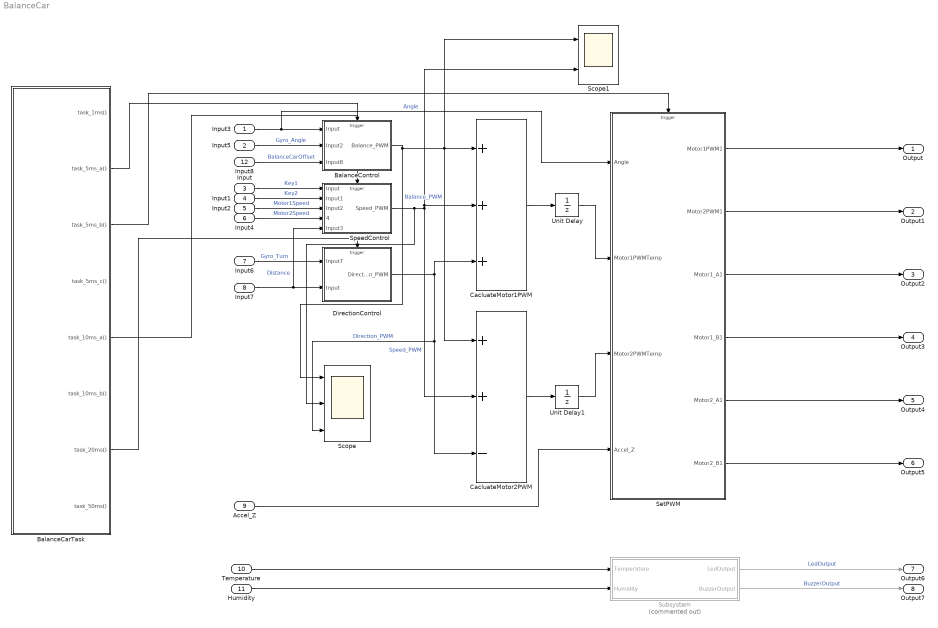
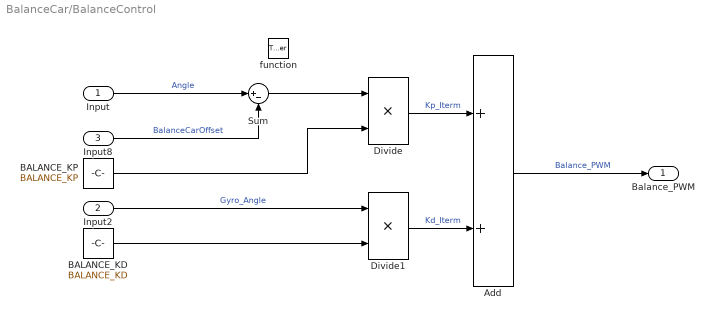
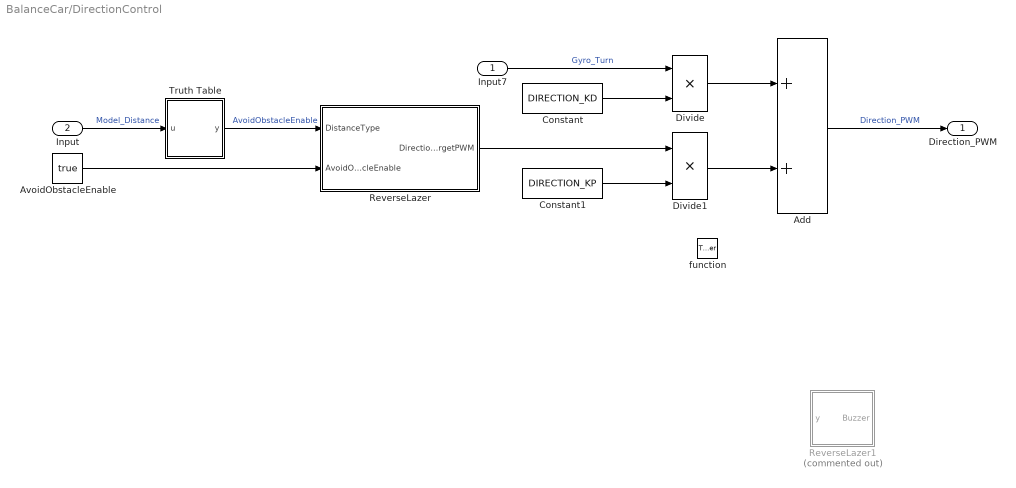
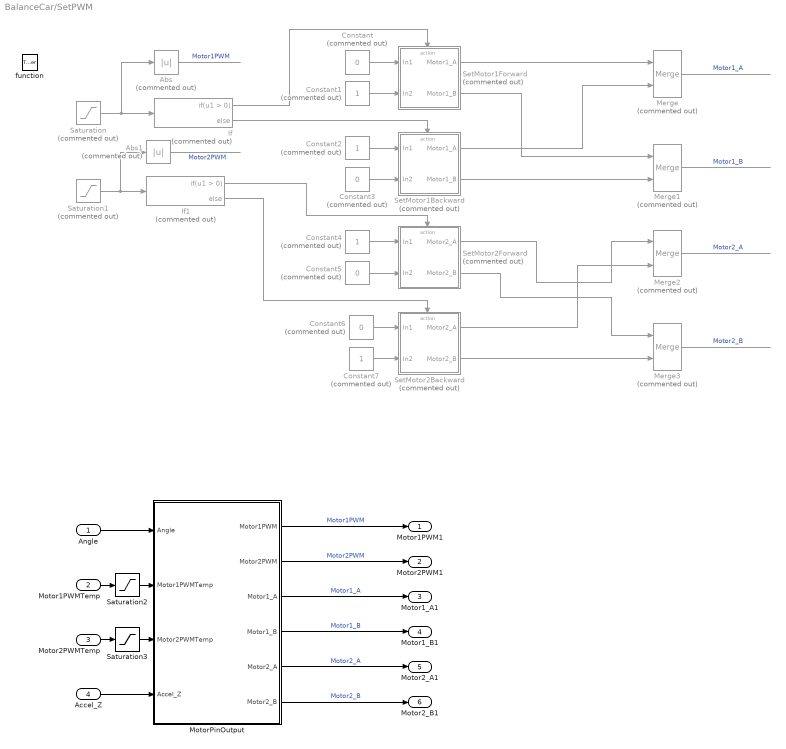
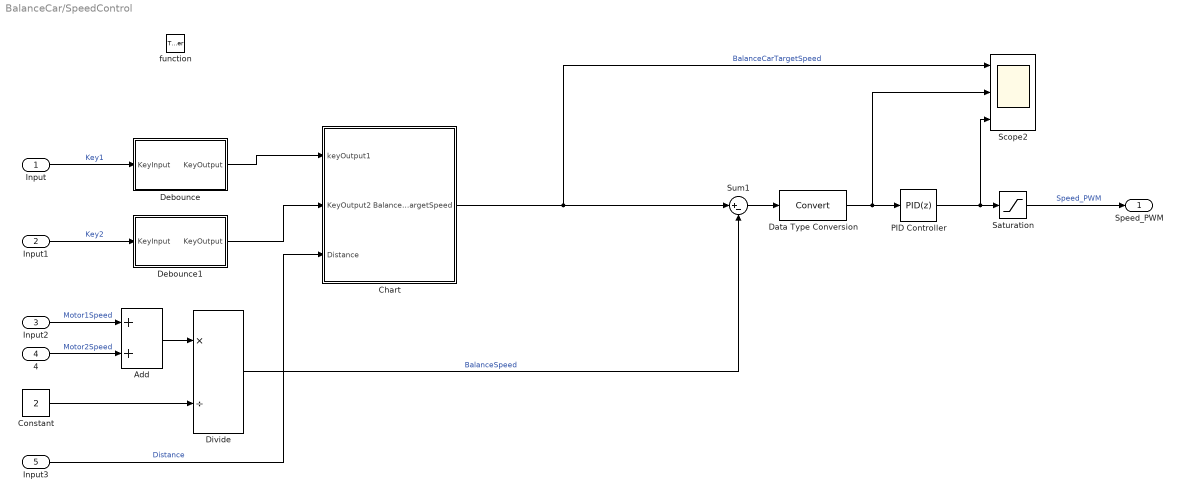
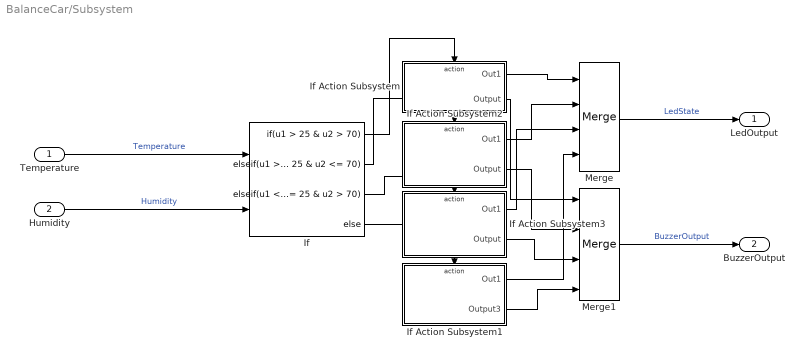
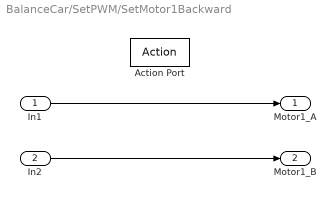
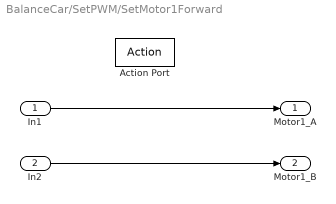
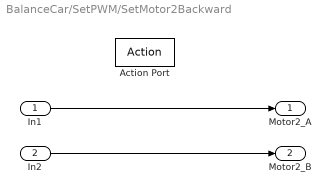
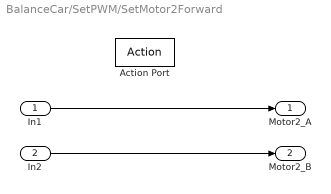
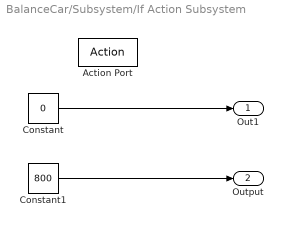
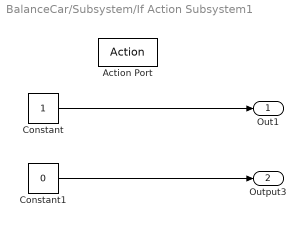
== system BalanceCar/SetPWM/MotorPinOutput/abs ==
  x : Inport  OutDataTypeStr=int16  PortDimensions=1
  f : TriggerPort  TriggerType=function-call  VariantControl=(inherit)
  Abs : Abs  OutDataTypeStr=uint16  SaturateOnIntegerOverflow=off
  y : Outport  OutDataTypeStr=uint16
  wires:
  x/1 -> Abs/1
  Abs/1 -> y/1

== system BalanceCar/Subsystem/If Action Subsystem2 ==
  Action Port : ActionPort  ActionPortLabel=elseif(u1 > 25 & u2 <= 70)
  Constant : Constant  Value=0  OutDataTypeStr=uint8
  Constant1 : Constant  Value=0  OutDataTypeStr=uint16
  Out1 : Outport
  Output : Outport  Port=2
  wires:
  Constant1/1 -> Output/1
  Constant/1 -> Out1/1

== system BalanceCar/Subsystem/If Action Subsystem3 ==
  Action Port : ActionPort  ActionPortLabel=elseif(u1 <= 25 & u2 > 70)
  Constant : Constant  OutDataTypeStr=uint8
  Constant1 : Constant  Value=800  OutDataTypeStr=uint16
  Out1 : Outport
  Output : Outport  Port=2
  wires:
  Constant/1 -> Out1/1
  Constant1/1 -> Output/1

== stateflow chart BalanceCar/DirectionControl/ReverseLazer ==
  state Default [commented out]
    en:
    DirectionTargetPWM = 0;
    du:
    % disable chaoshengbo
    DiasbleAvoidObstacle = false;
  state TurnDirection [commented out]
    en:
    DirectionTargetPWM = 20;
    du:
    DirectionTargetPWM = DirectionTargetPWM - 1;
  state Back [commented out]
    en:
    DirectionTargetPWM = -20;
    du:
    DirectionTargetPWM = DirectionTargetPWM + 1;
  state Default1
    en:
    DirectionTargetPWM = 0;
  state TurnDirection1
    en:
    DirectionTargetPWM = 0;
    state Enter1
      du:
      DirectionTargetPWM = DirectionTargetPWM + 5;
    state End1
    (default) -> TurnDirection1.Enter1
    TurnDirection1.Enter1 -> TurnDirection1.End1 : [ DistanceType == 0 || DirectionTargetPWM > 100]
  state StopTurn
    en:
    state Enter1
      du:
      DirectionTargetPWM = DirectionTargetPWM - 10;
    state End1
    (default) -> StopTurn.Enter1
    StopTurn.Enter1 -> StopTurn.End1 : [DirectionTargetPWM == 0]
  state Back2 [commented out]
    en:
    DirectionTargetPWM = 40;
    state Enter1 [commented out]
      du:
      DirectionTargetPWM = DirectionTargetPWM - 4;
    state End1 [commented out]
    (default) -> Back2.Enter1 [commented out]
    Back2.Enter1 -> Back2.End1 [commented out] : [DirectionTargetPWM == 0]
  state Back1 [commented out]
    en:
    DirectionTargetPWM = 40;
    state Enter1 [commented out]
      du:
      DirectionTargetPWM = DirectionTargetPWM - 4;
    state End1 [commented out]
    (default) -> Back1.Enter1 [commented out]
    Back1.Enter1 -> Back1.End1 [commented out] : [DirectionTargetPWM == 0]
  (default) -> Default [commented out]
  Default -> TurnDirection [commented out] : [DiasbleAvoidObstacle...  &&(DistanceType == 1 || DistanceType == 2 || DistanceType == 3)]
  TurnDirection -> Back [commented out] : [(DirectionTargetPWM == 0)&&after(1000,msec)]
  Back -> Default [commented out] : [(DirectionTargetPWM == 0)&&after(1000,msec)]
  (default) -> Default1
  Default1 -> TurnDirection1 : [AvoidObstacleEnable...  &&(DistanceType == 1)...  &&(DistanceType == 2)...  &&(DistanceType == 3)]
  TurnDirection1.End1 -> StopTurn : [after(10,msec)]
  StopTurn -> Default1 : [DirectionTargetPWM == 0 || DistanceType == 0]
  StopTurn.End1 -> Back2 [commented out] : [after(20,msec)]
  Back2.End1 -> Back1 [commented out] : [after(20,msec)]
  data: DirectionTargetPWM output; DistanceType input; AvoidObstacleEnable input

== matlab function BalanceCar/DirectionControl/Truth Table ==
function y = fcn(u)

aVarTruthTableCondition_1 = false;
aVarTruthTableCondition_2 = false;
aVarTruthTableCondition_3 = false;


% Example condition 1

aVarTruthTableCondition_1 = logical((u  <= 10) &&(u  >=0));

% Example condition 2

aVarTruthTableCondition_2 = logical((u  <= 30) &&(u  > 10));

% Example condition 3

aVarTruthTableCondition_3 = logical((u  >30) &&(u  < 50));

if (aVarTruthTableCondition_1)
    aFcnTruthTableAction_1();
elseif (~aVarTruthTableCondition_1 && aVarTruthTableCondition_2)
    aFcnTruthTableAction_2();
elseif (~aVarTruthTableCondition_1 && ~aVarTruthTableCondition_2 && aVarTruthTableCondition_3)
    aFcnTruthTableAction_3();
else % Default
    aFcnTruthTableAction_4();
end

function aFcnTruthTableAction_1()

% Action 1:Dangerous

y = 1;

function aFcnTruthTableAction_2()

% Action 2: Carefull

y = 2;

function aFcnTruthTableAction_3()

% Action 3:Warning

y = 3;

function aFcnTruthTableAction_4()

% Action 4:Noramal

y = 0;

== stateflow chart BalanceCar/BalanceCarTask ==
  state Task_5ms [function]
    (default) -> (junction 132)
    (junction 132) -> (junction 140) [order 1] : [task_5ms_count == 1]
    (junction 132) -> (junction 144) [order 2]
    (junction 140) -> (junction 142) : {task_5ms_a}
    (junction 142) -> (junction 144)
    (junction 144) -> (junction 148)
    (junction 148) -> (junction 155) [order 1] : [task_5ms_count == 2]
    (junction 148) -> (junction 151) [order 2]
    (junction 155) -> (junction 152) : {task_5ms_b}
    (junction 152) -> (junction 151)
    (junction 151) -> (junction 162)
    (junction 162) -> (junction 166) [order 1] : [task_5ms_count == 3]
    (junction 162) -> (junction 160) [order 2]
    (junction 166) -> (junction 161) : {task_5ms_c}
    (junction 161) -> (junction 160)
  state Task_10ms [function]
    (default) -> (junction 169)
    (junction 169) -> (junction 193) [order 1] : [task_10ms_count == 2]
    (junction 169) -> (junction 181) [order 2]
    (junction 193) -> (junction 190) : {task_10ms_a}
    (junction 190) -> (junction 181)
    (junction 181) -> (junction 185)
    (junction 185) -> (junction 189) [order 1] : [task_10ms_count == 3]
    (junction 185) -> (junction 183) [order 2]
    (junction 189) -> (junction 184) : {task_10ms_b}
    (junction 184) -> (junction 183)
  state Task_20ms [function]
    (default) -> (junction 196)
    (junction 196) -> (junction 204) [order 1] : [task_20ms_count == 3]
    (junction 196) -> (junction 201) [order 2]
    (junction 204) -> (junction 202) : {task_20ms}
    (junction 202) -> (junction 201)
  state Task_50ms [function]
    (default) -> (junction 206)
    (junction 206) -> (junction 214) [order 1] : [task_50ms_count == 4]
    (junction 206) -> (junction 211) [order 2]
    (junction 214) -> (junction 212) : {task_50ms}
    (junction 212) -> (junction 211)
  (default) -> (junction 87) : {task_5ms_count = task_5ms_count + 1;}
  (junction 87) -> (junction 69) : {task_1ms;}
  (junction 69) -> (junction 77) [order 1] : [mod(task_5ms_count,5)==0]
  (junction 69) -> (junction 71) [order 2]
  (junction 77) -> (junction 79) : {task_5ms_count = 0;}
  (junction 79) -> (junction 71)
  (junction 71) -> (junction 93) : {task_10ms_count = task_10ms_count + 1;}
  (junction 93) -> (junction 95) [order 1] : [mod(task_10ms_count,10)==0]
  (junction 93) -> (junction 97) [order 2]
  (junction 95) -> (junction 99) : {task_10ms_count = 0;}
  (junction 99) -> (junction 97)
  (junction 97) -> (junction 106) : {task_20ms_count = task_20ms_count + 1;}
  (junction 106) -> (junction 108) [order 1] : [mod(task_20ms_count,20)==0]
  (junction 106) -> (junction 103) [order 2]
  (junction 108) -> (junction 109) : {task_20ms_count = 1;}
  (junction 109) -> (junction 103)
  (junction 103) -> (junction 114) : {task_50ms_count = task_50ms_count + 1;}
  (junction 114) -> (junction 117) [order 1] : [mod(task_50ms_count,50)==0]
  (junction 114) -> (junction 115) [order 2]
  (junction 117) -> (junction 116) : {task_50ms_count = 0;}
  (junction 116) -> (junction 115)
  (junction 115) -> (junction 138) : {Task_5ms(); Task_10ms(); Task_20ms(); Task_50ms();}
  data: task_5ms_count local uint8 =NUM0; task_10ms_count local uint8 =NUM0; task_20ms_count local uint8 =NUM0; task_50ms_count local uint8 =NUM0
  events: task_10ms_a output FUNCTION_CALL_EVENT; task_1ms output FUNCTION_CALL_EVENT; task_5ms_a output FUNCTION_CALL_EVENT; task_20ms output FUNCTION_CALL_EVENT; task_5ms_b output FUNCTION_CALL_EVENT; task_5ms_c output FUNCTION_CALL_EVENT; task_10ms_b output FUNCTION_CALL_EVENT; task_50ms output FUNCTION_CALL_EVENT

== stateflow chart BalanceCar/SpeedControl/Debounce ==
  state Debounce [parallel]
    state Key1Off
      du:
      KeyState = OFF;
    state KeyOn
      du:
      KeyState = ON;
      KeyOnFlag = true;
    (default) -> Key1Off
    Key1Off -> KeyOn : [duration(KeyInput <= NUM0)>=0.01]
    KeyOn -> Key1Off : [duration(KeyInput > NUM0)>=0.01]
  state KeyCounter [function]
    (default) -> (junction 40)
    (junction 40) -> (junction 43) [order 1] : [(KeyOnFlag == true)&&(KeyState == OFF)]
    (junction 40) -> (junction 41) [order 2]
    (junction 43) -> (junction 37) : {KeyOnFlag = false; KeyOutput =  ON;}
    (junction 41) -> (junction 37) : {KeyOutput =  OFF;}
  state KeyTimes [parallel]
    du:
    KeyCounter();
  data: KeyInput input uint8; OFF parameter; ON parameter; NUM0 parameter; KeyOutput output uint8; KeyOnFlag local boolean =false; KeyState local uint8 =OFF

== stateflow chart BalanceCar/SpeedControl/Debounce1 ==
  state Debounce [parallel]
    state Key1Off
      du:
      KeyState = OFF;
    state KeyOn
      du:
      KeyState = ON;
      KeyOnFlag = true;
    (default) -> Key1Off
    Key1Off -> KeyOn : [duration(KeyInput <= NUM0)>=0.01]
    KeyOn -> Key1Off : [duration(KeyInput > NUM0)>=0.01]
  state KeyCounter [function]
    (default) -> (junction 40)
    (junction 40) -> (junction 43) [order 1] : [(KeyOnFlag == true)&&(KeyState == OFF)]
    (junction 40) -> (junction 41) [order 2]
    (junction 43) -> (junction 37) : {KeyOnFlag = false; KeyOutput =  ON;}
    (junction 41) -> (junction 37) : {KeyOutput =  OFF;}
  state KeyTimes [parallel]
    du:
    KeyCounter();
  data: KeyInput input uint8; OFF parameter; ON parameter; NUM0 parameter; KeyOutput output uint8; KeyOnFlag local boolean =false; KeyState local uint8 =OFF

== stateflow chart BalanceCar/SpeedControl/Chart ==
  state SpeedDown [function]
    (default) -> (junction 33)
    (junction 33) -> (junction 35) [order 1] : [KeyOutput2 == ON]
    (junction 33) -> (junction 37) [order 2]
    (junction 35) -> (junction 41) : {BalanceCarTargetSpeed=BalanceCarTargetSpeed-20;}
    (junction 37) -> (junction 41)
  state SpeedUp [function]
    (default) -> (junction 26)
    (junction 26) -> (junction 28) [order 1] : [keyOutput1 == ON]
    (junction 26) -> (junction 30) [order 2]
    (junction 28) -> (junction 23) : {BalanceCarTargetSpeed=BalanceCarTargetSpeed+20;}
    (junction 30) -> (junction 23)
  state SpeedUpStatus
    en:
    BalanceCarTargetSpeed = 0;
    du:
    SpeedUp();
    SpeedDown();
    SpeedStop();
  state SpeedStop [function]
    (default) -> (junction 58)
    (junction 58) -> (junction 59) [order 1] : [Distance <= 10]
    (junction 58) -> (junction 60) [order 2]
    (junction 59) -> (junction 61)
    (junction 60) -> (junction 61)
  (default) -> SpeedUpStatus
  data: keyOutput1 input; ON parameter; KeyOutput2 input; BalanceCarTargetSpeed output int16; Distance input

== stateflow chart BalanceCar/DirectionControl/ReverseLazer1 ==
  state Dangours
    en:
    state RuningState
      du:
      Buzzer = 480;
    state StopState
      du:
      Buzzer = 0;
    (default) -> Dangours.RuningState
    Dangours.RuningState -> Dangours.StopState : [after(20,msec)]
    Dangours.StopState -> Dangours.RuningState : [after(10,msec)]
  state Default
    en:
    Buzzer = 0;
  state Warning
    state RuningState
      du:
      Buzzer = 480;
    state StopState
      du:
      Buzzer = 0;
    (default) -> Warning.RuningState
    Warning.RuningState -> Warning.StopState : [after(50,msec)]
    Warning.StopState -> Warning.RuningState : [after(20,msec)]
  state Careful
    state RuningState
      du:
      Buzzer = 480;
    state StopState
      du:
      Buzzer = 0;
    (default) -> Careful.RuningState
    Careful.RuningState -> Careful.StopState : [after(100,msec)]
    Careful.StopState -> Careful.RuningState : [after(50,msec)]
  state Normal
    en:
    Buzzer = 0;
  (default) -> Default
  Default -> Dangours [order 1] : [y == 1]
  Dangours -> Warning [order 1] : [y==2]
  Warning -> Dangours [order 1] : [y==1]
  Dangours -> Careful [order 3] : [y == 3]
  Careful -> Dangours [order 3] : [y==1]
  Normal -> Dangours [order 3] : [y==1]
  Dangours -> Normal [order 2] : [y==4]
  Default -> Warning [order 2] : [y==2]
  Warning -> Careful [order 2] : [y==3]
  Careful -> Warning [order 2] : [y==2]
  Warning -> Normal [order 3] : [y==4]
  Normal -> Warning [order 2] : [y==2]
  Default -> Careful [order 4] : [y == 3]
  Careful -> Normal [order 1] : [y==4]
  Normal -> Careful [order 1] : [y==3]
  Default -> Normal [order 3] : [y==4]
  data: y input; Buzzer output uint16

== stateflow chart BalanceCar/SetPWM/MotorPinOutput ==
  state PeriodFunction
    en:
    Motor1_A = LOW;
    Motor1_B = LOW;
    Motor2_A = LOW;
    Motor2_B = LOW;
    du:
    Motor1PWM = abs(Motor1PWMTemp);
    Motor2PWM = abs(Motor2PWMTemp);
    SetDirection();
    FallDownDetect();
  state FallDownDetect [function]
    (default) -> (junction 68)
    (junction 68) -> (junction 69) [order 1] : [(Angle > 55) || (Angle < -50)]
    (junction 68) -> (junction 74) [order 2]
    (junction 69) -> (junction 65) : {MotorStop}
    (junction 74) -> (junction 65) [order 1] : [Accel_Z > 18000]
    (junction 74) -> (junction 100) [order 2]
    (junction 65) -> (junction 98)
    (junction 100) -> (junction 98)
  state SetDirection [function]
    (default) -> (junction 9)
    (junction 9) -> (junction 11) [order 1] : [Motor1PWMTemp > NUM0]
    (junction 9) -> (junction 13) [order 2] : {Motor1Backward}
    (junction 11) -> (junction 15) : {Motor1Forward}
    (junction 15) -> (junction 13)
    (junction 13) -> (junction 18)
    (junction 18) -> (junction 19) [order 1] : [Motor2PWMTemp > NUM0]
    (junction 18) -> (junction 29) [order 2] : {Motor2Backward}
    (junction 19) -> (junction 31) : {Motor2Forward}
    (junction 29) -> (junction 31)
  state MotorStop [function]
    (default) -> (junction 62) : {Motor1_A = LOW; Motor1_B = LOW; Motor2_A = LOW; Motor2_B = LOW; Motor1PWM = NUM0; Motor2PWM = NUM0}
  state y=abs(x) [function]
  state Motor1Forward [function]
    (default) -> (junction 48) : {Motor1_A = LOW; Motor1_B = HIGH;}
  state Motor1Backward [function]
    (default) -> (junction 55) : {Motor1_A = HIGH; Motor1_B = LOW;}
  state Motor2Forward [function]
    (default) -> (junction 53) : {Motor2_A = LOW; Motor2_B = HIGH;}
  state Motor2Backward [function]
    (default) -> (junction 57) : {Motor2_A = HIGH; Motor2_B = LOW;}
  (default) -> PeriodFunction
  data: x function_input int16; y function_output uint16; Motor1PWM output; Motor2PWM output; LOW parameter; Motor1PWMTemp input; Motor2PWMTemp input; Motor1_A output; HIGH parameter; NUM0 parameter; Angle input; Motor1_B output; Motor2_A output; Motor2_B output; Accel_Z input

/*
 * Academic License - for use in teaching, academic research, and meeting
 * course requirements at degree granting institutions only.  Not for
 * government, commercial, or other organizational use.
 *
 * File: BalanceCar.c
 *
 * Code generated for Simulink model 'BalanceCar'.
 *
 * Model version                  : 1.56
 * Simulink Coder version         : 9.7 (R2022a) 13-Nov-2021
 * C/C++ source code generated on : Mon Jun  2 11:08:17 2025
 *
 * Target selection: ert.tlc
 * Embedded hardware selection: Custom Processor->Custom Processor
 * Code generation objectives: Unspecified
 * Validation result: Not run
 */

#include "BalanceCar.h"
#include "rtwtypes.h"
#include <math.h>

/* Named constants for Chart: '<S5>/Debounce' */
#define BalanceCar_IN_Key1Off          ((uint8_T)1U)
#define BalanceCar_IN_KeyOn            ((uint8_T)2U)

/* Named constants for Chart: '<S3>/ReverseLazer' */
#define BalanceCar_IN_Default1         ((uint8_T)1U)
#define BalanceCar_IN_End1             ((uint8_T)1U)
#define BalanceCar_IN_Enter1           ((uint8_T)2U)
#define BalanceCar_IN_NO_ACTIVE_CHILD  ((uint8_T)0U)
#define BalanceCar_IN_StopTurn         ((uint8_T)2U)
#define BalanceCar_IN_TurnDirection1   ((uint8_T)3U)

/* Exported block signals */
real32_T Angle;                        /* '<Root>/Input3' */
int16_T Gyro_Angle;                    /* '<Root>/Input5' */
uint8_T Key1;                          /* '<Root>/Input' */
uint8_T Key2;                          /* '<Root>/Input1' */
int16_T Motor1Speed;                   /* '<Root>/Input2' */
int16_T Motor2Speed;                   /* '<Root>/Input4' */
int16_T Gyro_Turn;                     /* '<Root>/Input6' */
real32_T Model_Distance;               /* '<Root>/Input7' */
real32_T BalanceCarOffset;             /* '<Root>/Input8' */
uint16_T Motor1PWM;                    /* '<S4>/MotorPinOutput' */
uint16_T Motor2PWM;                    /* '<S4>/MotorPinOutput' */
int16_T Direction_PWM;                 /* '<S3>/Add' */
int16_T Balance_PWM;                   /* '<S2>/Add' */
int16_T Speed_PWM;                     /* '<S5>/Saturation' */
int16_T BalanceCarTargetSpeed;         /* '<S5>/Chart' */
uint8_T Motor1_A;                      /* '<S4>/MotorPinOutput' */
uint8_T Motor1_B;                      /* '<S4>/MotorPinOutput' */
uint8_T Motor2_A;                      /* '<S4>/MotorPinOutput' */
uint8_T Motor2_B;                      /* '<S4>/MotorPinOutput' */

/* Block signals (default storage) */
B_BalanceCar_T BalanceCar_B;

/* Block states (default storage) */
DW_BalanceCar_T BalanceCar_DW;

/* External inputs (root inport signals with default storage) */
ExtU_BalanceCar_T BalanceCar_U;

/* External outputs (root outports fed by signals with default storage) */
ExtY_BalanceCar_T BalanceCar_Y;

/* Real-time model */
static RT_MODEL_BalanceCar_T BalanceCar_M_;
RT_MODEL_BalanceCar_T *const BalanceCar_M = &BalanceCar_M_;
static int32_T div_nde_s32_floor(int32_T numerator, int32_T denominator);
static void BalanceCar_Debounce_Init(uint8_T *rty_KeyOutput,
  DW_Debounce_BalanceCar_T *localDW);
static void BalanceCar_Debounce_Enable(RT_MODEL_BalanceCar_T * const
  BalanceCar_M, DW_Debounce_BalanceCar_T *localDW);
static void BalanceCar_Debounce(RT_MODEL_BalanceCar_T * const BalanceCar_M,
  uint8_T rtu_KeyInput, uint8_T *rty_KeyOutput, DW_Debounce_BalanceCar_T
  *localDW);
static void BalanceCar_BalanceControl_Init(int16_T *rty_Balance_PWM,
  P_BalanceControl_BalanceCar_T *localP);
static void BalanceCar_BalanceControl(real32_T rtu_Input, int16_T rtu_Input2,
  real32_T rtu_Input8, int16_T *rty_Balance_PWM);
static void BalanceCar_abs_Init(uint16_T *rty_y, P_abs_BalanceCar_T *localP);
static void BalanceCar_abs(int16_T rtu_x, uint16_T *rty_y);
static void BalanceCar_SetPWM_Init(uint16_T *rty_Motor1PWM1, uint16_T
  *rty_Motor2PWM1, P_SetPWM_BalanceCar_T *localP);
static void BalanceCar_SetPWM(real32_T rtu_Angle, int16_T rtu_Motor1PWMTemp,
  int16_T rtu_Motor2PWMTemp, uint16_T *rty_Motor1PWM1, uint16_T *rty_Motor2PWM1,
  uint8_T *rty_Motor1_A1, uint8_T *rty_Motor1_B1, uint8_T *rty_Motor2_A1,
  uint8_T *rty_Motor2_B1, DW_SetPWM_BalanceCar_T *localDW, P_SetPWM_BalanceCar_T
  *localP);
static void SpeedControl_Init(void);
static void SpeedControl_Enable(void);
static void SpeedControl(void);
static void BalanceCar_TruthTable(void);
static void DirectionControl_Init(void);
static void DirectionControl_Enable(void);
static void DirectionControl(void);

/* Forward declaration for local functions */
static void BalanceCar_KeyCounter(uint8_T *rty_KeyOutput,
  DW_Debounce_BalanceCar_T *localDW);

/* Forward declaration for local functions */
static void BalanceCar_Motor1Backward(uint8_T *Motor1_A_a, uint8_T *Motor1_B_h);
static void BalanceCar_Motor1Forward(uint8_T *Motor1_A_a, uint8_T *Motor1_B_h);
static void BalanceCar_SetDirection(uint8_T *Motor1_A_a, uint8_T *Motor1_B_h,
  uint8_T *Motor2_A_n, uint8_T *Motor2_B_p, const int16_T *Saturation2, const
  int16_T *Saturation3);
static void BalanceCar_MotorStop(uint8_T *Motor1_A_a, uint8_T *Motor1_B_h,
  uint8_T *Motor2_A_n, uint8_T *Motor2_B_p, uint16_T *rty_Motor1PWM1, uint16_T
  *rty_Motor2PWM1);
static void BalanceCar_FallDownDetect(uint8_T *Motor1_A_a, uint8_T *Motor1_B_h,
  uint8_T *Motor2_A_n, uint8_T *Motor2_B_p, real32_T rtu_Angle, uint16_T
  *rty_Motor1PWM1, uint16_T *rty_Motor2PWM1);

/* Forward declaration for local functions */
static void BalanceCar_SpeedUp(void);
static void BalanceCar_SpeedDown(void);

/* Forward declaration for local functions */
static void BalanceCar_Task_5ms(const int16_T *UnitDelay, const int16_T
  *UnitDelay1);
static void BalanceCar_Task_10ms(void);
static void BalanceCar_Task_20ms(void);
static int32_T div_nde_s32_floor(int32_T numerator, int32_T denominator)
{
  return (((numerator < 0) != (denominator < 0)) && (numerator % denominator !=
           0) ? -1 : 0) + numerator / denominator;
}

/* Function for Chart: '<S5>/Debounce' */
static void BalanceCar_KeyCounter(uint8_T *rty_KeyOutput,
  DW_Debounce_BalanceCar_T *localDW)
{
  if (localDW->KeyOnFlag && (localDW->KeyState == ((uint8_T)OFF))) {
    localDW->KeyOnFlag = false;
    *rty_KeyOutput = ((uint8_T)ON);
  } else {
    *rty_KeyOutput = ((uint8_T)OFF);
  }
}

/*
 * System initialize for atomic system:
 *    '<S5>/Debounce'
 *    '<S5>/Debounce1'
 */
static void BalanceCar_Debounce_Init(uint8_T *rty_KeyOutput,
  DW_Debounce_BalanceCar_T *localDW)
{
  localDW->KeyState = 1U;
  *rty_KeyOutput = 0U;
}

/*
 * Enable for atomic system:
 *    '<S5>/Debounce'
 *    '<S5>/Debounce1'
 */
static void BalanceCar_Debounce_Enable(RT_MODEL_BalanceCar_T * const
  BalanceCar_M, DW_Debounce_BalanceCar_T *localDW)
{
  real_T durationOperatorLastReferenceTi;
  durationOperatorLastReferenceTi = ((BalanceCar_M->Timing.clockTick0) * 0.001)
    - localDW->chartDisableTime;
  localDW->durationOperatorLastReferenceTi += durationOperatorLastReferenceTi;
  localDW->durationOperatorLastReference_e += durationOperatorLastReferenceTi;
}

/*
 * Output and update for atomic system:
 *    '<S5>/Debounce'
 *    '<S5>/Debounce1'
 */
static void BalanceCar_Debounce(RT_MODEL_BalanceCar_T * const BalanceCar_M,
  uint8_T rtu_KeyInput, uint8_T *rty_KeyOutput, DW_Debounce_BalanceCar_T
  *localDW)
{
  boolean_T condIsTrue;
  condIsTrue = (rtu_KeyInput <= ((uint8_T)NUM0));
  if ((!condIsTrue) || (!localDW->condWasTrueAtLastTimeStep_1)) {
    localDW->durationOperatorLastReferenceTi = ((BalanceCar_M->Timing.clockTick0)
      * 0.001);
  }

  localDW->condWasTrueAtLastTimeStep_1 = condIsTrue;
  condIsTrue = (rtu_KeyInput > ((uint8_T)NUM0));
  if ((!condIsTrue) || (!localDW->condWasTrueAtLastTimeStep_1_a)) {
    localDW->durationOperatorLastReference_e = ((BalanceCar_M->Timing.clockTick0)
      * 0.001);
  }

  localDW->condWasTrueAtLastTimeStep_1_a = condIsTrue;

  /* Chart: '<S5>/Debounce' */
  if (localDW->is_active_c4_BalanceCar == 0U) {
    localDW->is_active_c4_BalanceCar = 1U;
    localDW->durationOperatorLastReferenceTi = ((BalanceCar_M->Timing.clockTick0)
      * 0.001);
    localDW->is_Debounce = BalanceCar_IN_Key1Off;
    localDW->condWasTrueAtLastTimeStep_1 = (rtu_KeyInput <= ((uint8_T)NUM0));
  } else {
    if (localDW->is_Debounce == BalanceCar_IN_Key1Off) {
      condIsTrue = (rtu_KeyInput <= ((uint8_T)NUM0));
      if ((!condIsTrue) || (!localDW->condWasTrueAtLastTimeStep_1)) {
        localDW->durationOperatorLastReferenceTi =
          ((BalanceCar_M->Timing.clockTick0) * 0.001);
      }

      localDW->condWasTrueAtLastTimeStep_1 = condIsTrue;
      if (((BalanceCar_M->Timing.clockTick0) * 0.001) -
          localDW->durationOperatorLastReferenceTi >= 0.01) {
        localDW->durationOperatorLastReference_e =
          ((BalanceCar_M->Timing.clockTick0) * 0.001);
        localDW->is_Debounce = BalanceCar_IN_KeyOn;
        localDW->condWasTrueAtLastTimeStep_1_a = (rtu_KeyInput > ((uint8_T)NUM0));
      } else {
        localDW->KeyState = ((uint8_T)OFF);
      }
    } else {
      /* case IN_KeyOn: */
      condIsTrue = (rtu_KeyInput > ((uint8_T)NUM0));
      if ((!condIsTrue) || (!localDW->condWasTrueAtLastTimeStep_1_a)) {
        localDW->durationOperatorLastReference_e =
          ((BalanceCar_M->Timing.clockTick0) * 0.001);
      }

      localDW->condWasTrueAtLastTimeStep_1_a = condIsTrue;
      if (((BalanceCar_M->Timing.clockTick0) * 0.001) -
          localDW->durationOperatorLastReference_e >= 0.01) {
        localDW->durationOperatorLastReferenceTi =
          ((BalanceCar_M->Timing.clockTick0) * 0.001);
        localDW->is_Debounce = BalanceCar_IN_Key1Off;
        localDW->condWasTrueAtLastTimeStep_1 = (rtu_KeyInput <= ((uint8_T)NUM0));
      } else {
        localDW->KeyState = ((uint8_T)ON);
        localDW->KeyOnFlag = true;
      }
    }

    BalanceCar_KeyCounter(rty_KeyOutput, localDW);
  }

  /* End of Chart: '<S5>/Debounce' */
}

/* Function for Chart: '<S5>/Chart' */
static void BalanceCar_SpeedUp(void)
{
  if (BalanceCar_B.KeyOutput_e == ((uint8_T)ON)) {
    int32_T tmp;
    tmp = BalanceCarTargetSpeed + 20;
    if (BalanceCarTargetSpeed + 20 > 32767) {
      tmp = 32767;
    }

    BalanceCarTargetSpeed = (int16_T)tmp;
  }
}

/* Function for Chart: '<S5>/Chart' */
static void BalanceCar_SpeedDown(void)
{
  if (BalanceCar_B.KeyOutput == ((uint8_T)ON)) {
    int32_T tmp;
    tmp = BalanceCarTargetSpeed - 20;
    if (BalanceCarTargetSpeed - 20 < -32768) {
      tmp = -32768;
    }

    BalanceCarTargetSpeed = (int16_T)tmp;
  }
}

/* System initialize for function-call system: '<Root>/SpeedControl' */
static void SpeedControl_Init(void)
{
  /* InitializeConditions for DiscreteIntegrator: '<S40>/Filter' */
  BalanceCar_DW.Filter_DSTATE = BalanceCar_P.PIDController_InitialConditionF;

  /* InitializeConditions for DiscreteIntegrator: '<S45>/Integrator' */
  BalanceCar_DW.Integrator_DSTATE = BalanceCar_P.PIDController_InitialConditio_j;

  /* SystemInitialize for Chart: '<S5>/Debounce' */
  BalanceCar_Debounce_Init(&BalanceCar_B.KeyOutput_e, &BalanceCar_DW.sf_Debounce);

  /* SystemInitialize for Chart: '<S5>/Debounce1' */
  BalanceCar_Debounce_Init(&BalanceCar_B.KeyOutput, &BalanceCar_DW.sf_Debounce1);

  /* SystemInitialize for Saturate: '<S5>/Saturation' incorporates:
   *  Outport: '<S5>/Speed_PWM'
   */
  Speed_PWM = BalanceCar_P.Speed_PWM_Y0;
}

/* Enable for function-call system: '<Root>/SpeedControl' */
static void SpeedControl_Enable(void)
{
  BalanceCar_DW.SpeedControl_RESET_ELAPS_T = true;

  /* Enable for Chart: '<S5>/Debounce' */
  BalanceCar_Debounce_Enable(BalanceCar_M, &BalanceCar_DW.sf_Debounce);

  /* Enable for Chart: '<S5>/Debounce1' */
  BalanceCar_Debounce_Enable(BalanceCar_M, &BalanceCar_DW.sf_Debounce1);

  /* Enable for DiscreteIntegrator: '<S40>/Filter' */
  BalanceCar_DW.Filter_SYSTEM_ENABLE = 1U;
}

/* Output and update for function-call system: '<Root>/SpeedControl' */
static void SpeedControl(void)
{
  real_T Filter;
  real_T rtb_FilterCoefficient;
  uint32_T SpeedControl_ELAPS_T;
  int16_T rtb_Sum;
  if (BalanceCar_DW.SpeedControl_RESET_ELAPS_T) {
    SpeedControl_ELAPS_T = 0U;
  } else {
    SpeedControl_ELAPS_T = BalanceCar_M->Timing.clockTick0 -
      BalanceCar_DW.SpeedControl_PREV_T;
  }

  BalanceCar_DW.SpeedControl_PREV_T = BalanceCar_M->Timing.clockTick0;
  BalanceCar_DW.SpeedControl_RESET_ELAPS_T = false;

  /* Chart: '<S5>/Debounce' incorporates:
   *  Inport: '<Root>/Input'
   */
  BalanceCar_Debounce(BalanceCar_M, Key1, &BalanceCar_B.KeyOutput_e,
                      &BalanceCar_DW.sf_Debounce);

  /* Chart: '<S5>/Debounce1' incorporates:
   *  Inport: '<Root>/Input1'
   */
  BalanceCar_Debounce(BalanceCar_M, Key2, &BalanceCar_B.KeyOutput,
                      &BalanceCar_DW.sf_Debounce1);

  /* Chart: '<S5>/Chart' */
  if (BalanceCar_DW.is_active_c6_BalanceCar == 0U) {
    BalanceCar_DW.is_active_c6_BalanceCar = 1U;
    BalanceCarTargetSpeed = 0;
  } else {
    BalanceCar_SpeedUp();
    BalanceCar_SpeedDown();
  }

  /* End of Chart: '<S5>/Chart' */

  /* Sum: '<S5>/Sum1' incorporates:
   *  Constant: '<S5>/Constant'
   *  Inport: '<Root>/Input2'
   *  Inport: '<Root>/Input4'
   *  Product: '<S5>/Divide'
   *  Sum: '<S5>/Add'
   */
  rtb_Sum = (int16_T)(BalanceCarTargetSpeed - (int16_T)div_nde_s32_floor
                      ((int16_T)(Motor1Speed + Motor2Speed),
                       BalanceCar_P.Constant_Value));

  /* DiscreteIntegrator: '<S40>/Filter' */
  if (BalanceCar_DW.Filter_SYSTEM_ENABLE != 0) {
    /* DiscreteIntegrator: '<S40>/Filter' */
    Filter = BalanceCar_DW.Filter_DSTATE;
  } else {
    /* DiscreteIntegrator: '<S40>/Filter' */
    Filter = BalanceCar_P.Filter_gainval * (real_T)SpeedControl_ELAPS_T
      * BalanceCar_DW.Filter_PREV_U + BalanceCar_DW.Filter_DSTATE;
  }

  /* End of DiscreteIntegrator: '<S40>/Filter' */

  /* Gain: '<S48>/Filter Coefficient' incorporates:
   *  DataTypeConversion: '<S5>/Data Type Conversion'
   *  Gain: '<S39>/Derivative Gain'
   *  Sum: '<S40>/SumD'
   */
  rtb_FilterCoefficient = (SPEED_KD * (real_T)rtb_Sum - Filter) *
    BalanceCar_P.PIDController_N;

  /* Sum: '<S54>/Sum' incorporates:
   *  DataTypeConversion: '<S5>/Data Type Conversion'
   *  DiscreteIntegrator: '<S45>/Integrator'
   *  Gain: '<S50>/Proportional Gain'
   */
  rtb_Sum = (int16_T)floor((SPEED_KP * (real_T)rtb_Sum +
    BalanceCar_DW.Integrator_DSTATE) + rtb_FilterCoefficient);

  /* Saturate: '<S5>/Saturation' */
  if (rtb_Sum > BalanceCar_P.Saturation_UpperSat) {
    /* Saturate: '<S5>/Saturation' */
    Speed_PWM = BalanceCar_P.Saturation_UpperSat;
  } else if (rtb_Sum < BalanceCar_P.Saturation_LowerSat) {
    /* Saturate: '<S5>/Saturation' */
    Speed_PWM = BalanceCar_P.Saturation_LowerSat;
  } else {
    /* Saturate: '<S5>/Saturation' */
    Speed_PWM = rtb_Sum;
  }

  /* End of Saturate: '<S5>/Saturation' */

  /* Update for DiscreteIntegrator: '<S40>/Filter' */
  BalanceCar_DW.Filter_SYSTEM_ENABLE = 0U;
  BalanceCar_DW.Filter_DSTATE = Filter;
  BalanceCar_DW.Filter_PREV_U = rtb_FilterCoefficient;

  /* Update for DiscreteIntegrator: '<S45>/Integrator' incorporates:
   *  Constant: '<S5>/Constant'
   *  DataTypeConversion: '<S5>/Data Type Conversion'
   *  Gain: '<S42>/Integral Gain'
   *  Inport: '<Root>/Input2'
   *  Inport: '<Root>/Input4'
   *  Product: '<S5>/Divide'
   *  Sum: '<S5>/Add'
   *  Sum: '<S5>/Sum1'
   */
  BalanceCar_DW.Integrator_DSTATE += (real_T)(int16_T)(BalanceCarTargetSpeed -
    (int16_T)div_nde_s32_floor((int16_T)(Motor1Speed + Motor2Speed),
    BalanceCar_P.Constant_Value)) * SPEED_KI * BalanceCar_P.Integrator_gainval;
}

/* System initialize for function-call system: '<Root>/BalanceControl' */
static void BalanceCar_BalanceControl_Init(int16_T *rty_Balance_PWM,
  P_BalanceControl_BalanceCar_T *localP)
{
  /* SystemInitialize for Outport: '<S2>/Balance_PWM' */
  *rty_Balance_PWM = localP->Balance_PWM_Y0;
}

/* Output and update for function-call system: '<Root>/BalanceControl' */
static void BalanceCar_BalanceControl(real32_T rtu_Input, int16_T rtu_Input2,
  real32_T rtu_Input8, int16_T *rty_Balance_PWM)
{
  /* Sum: '<S2>/Add' incorporates:
   *  Constant: '<S2>/BALANCE_KD'
   *  Constant: '<S2>/BALANCE_KP'
   *  Product: '<S2>/Divide'
   *  Product: '<S2>/Divide1'
   *  Sum: '<S2>/Sum'
   */
  *rty_Balance_PWM = (int16_T)floorf((rtu_Input - rtu_Input8) * BALANCE_KP +
    (real32_T)rtu_Input2 * BALANCE_KD);
}

/* Output and update for atomic system: '<S3>/Truth Table' */
static void BalanceCar_TruthTable(void)
{
  /* Inport: '<Root>/Input7' */
  /*  Example condition 1 */
  /*  Example condition 2 */
  /*  Example condition 3 */
  if ((Model_Distance <= 10.0F) && (Model_Distance >= 0.0F)) {
    /*  Action 1:Dangerous */
    BalanceCar_B.y = 1U;
  } else if ((Model_Distance <= 30.0F) && (Model_Distance > 10.0F)) {
    /*  Action 2: Carefull */
    BalanceCar_B.y = 2U;
  } else if ((Model_Distance > 30.0F) && (Model_Distance < 50.0F)) {
    /*  Action 3:Warning */
    BalanceCar_B.y = 3U;
  } else {
    /*  Default */
    /*  Action 4:Noramal */
    BalanceCar_B.y = 0U;
  }

  /* End of Inport: '<Root>/Input7' */
}

/* System initialize for function-call system: '<Root>/DirectionControl' */
static void DirectionControl_Init(void)
{
  /* SystemInitialize for Sum: '<S3>/Add' incorporates:
   *  Outport: '<S3>/Direction_PWM'
   */
  Direction_PWM = BalanceCar_P.Direction_PWM_Y0;
}

/* Enable for function-call system: '<Root>/DirectionControl' */
static void DirectionControl_Enable(void)
{
  /* Enable for Chart: '<S3>/ReverseLazer' */
  BalanceCar_DW.previousTicks = BalanceCar_M->Timing.clockTick0;
}

/* Output and update for function-call system: '<Root>/DirectionControl' */
static void DirectionControl(void)
{
  uint32_T elapsedTicks;

  /* Truth Table: '<S3>/Truth Table' */
  BalanceCar_TruthTable();

  /* Chart: '<S3>/ReverseLazer' incorporates:
   *  Constant: '<S3>/AvoidObstacleEnable'
   */
  elapsedTicks = BalanceCar_M->Timing.clockTick0 - BalanceCar_DW.previousTicks;
  BalanceCar_DW.previousTicks = BalanceCar_M->Timing.clockTick0;
  if (BalanceCar_DW.temporalCounter_i1 + elapsedTicks <= 15U) {
    BalanceCar_DW.temporalCounter_i1 = (uint8_T)
      (BalanceCar_DW.temporalCounter_i1 + elapsedTicks);
  } else {
    BalanceCar_DW.temporalCounter_i1 = 15U;
  }

  if (BalanceCar_DW.is_active_c1_BalanceCar == 0U) {
    BalanceCar_DW.is_active_c1_BalanceCar = 1U;
    BalanceCar_DW.is_c1_BalanceCar = BalanceCar_IN_Default1;
    BalanceCar_B.DirectionTargetPWM = 0.0;
  } else {
    switch (BalanceCar_DW.is_c1_BalanceCar) {
     case BalanceCar_IN_Default1:
      if (BalanceCar_P.AvoidObstacleEnable_Value && (BalanceCar_B.y == 1) &&
          (BalanceCar_B.y == 2) && (BalanceCar_B.y == 3)) {
        BalanceCar_DW.is_c1_BalanceCar = BalanceCar_IN_TurnDirection1;
        BalanceCar_B.DirectionTargetPWM = 0.0;
        BalanceCar_DW.is_TurnDirection1 = BalanceCar_IN_Enter1;
      }
      break;

     case BalanceCar_IN_StopTurn:
      if ((BalanceCar_B.DirectionTargetPWM == 0.0) || (BalanceCar_B.y == 0)) {
        BalanceCar_DW.is_StopTurn = BalanceCar_IN_NO_ACTIVE_CHILD;
        BalanceCar_DW.is_c1_BalanceCar = BalanceCar_IN_Default1;
        BalanceCar_B.DirectionTargetPWM = 0.0;
      } else {
        switch (BalanceCar_DW.is_StopTurn) {
         case BalanceCar_IN_End1:
          break;

         default:
          /* case IN_Enter1: */
          if (BalanceCar_B.DirectionTargetPWM == 0.0) {
            BalanceCar_DW.is_StopTurn = BalanceCar_IN_End1;
          } else {
            BalanceCar_B.DirectionTargetPWM -= 10.0;
          }
          break;
        }
      }
      break;

     default:
      /* case IN_TurnDirection1: */
      if (BalanceCar_DW.is_TurnDirection1 == BalanceCar_IN_End1) {
        if (BalanceCar_DW.temporalCounter_i1 >= 10U) {
          BalanceCar_DW.is_TurnDirection1 = BalanceCar_IN_NO_ACTIVE_CHILD;
          BalanceCar_DW.is_c1_BalanceCar = BalanceCar_IN_StopTurn;
          BalanceCar_DW.is_StopTurn = BalanceCar_IN_Enter1;
        }

        /* case IN_Enter1: */
      } else if ((BalanceCar_B.y == 0) || (BalanceCar_B.DirectionTargetPWM >
                  100.0)) {
        BalanceCar_DW.is_TurnDirection1 = BalanceCar_IN_End1;
        BalanceCar_DW.temporalCounter_i1 = 0U;
      } else {
        BalanceCar_B.DirectionTargetPWM += 5.0;
      }
      break;
    }
  }

  /* End of Chart: '<S3>/ReverseLazer' */

  /* Sum: '<S3>/Add' incorporates:
   *  Constant: '<S3>/Constant'
   *  Constant: '<S3>/Constant1'
   *  Inport: '<Root>/Input6'
   *  Product: '<S3>/Divide'
   *  Product: '<S3>/Divide1'
   */
  Direction_PWM = (int16_T)floor((real32_T)Gyro_Turn * DIRECTION_KD +
    BalanceCar_B.DirectionTargetPWM * DIRECTION_KP);
}

/* System initialize for function-call system: '<S8>/abs' */
static void BalanceCar_abs_Init(uint16_T *rty_y, P_abs_BalanceCar_T *localP)
{
  /* SystemInitialize for Outport: '<S9>/y' */
  *rty_y = localP->y_Y0;
}

/* Output and update for function-call system: '<S8>/abs' */
static void BalanceCar_abs(int16_T rtu_x, uint16_T *rty_y)
{
  /* Abs: '<S9>/Abs' */
  if (rtu_x < 0) {
    *rty_y = (uint16_T)-rtu_x;
  } else {
    *rty_y = (uint16_T)rtu_x;
  }

  /* End of Abs: '<S9>/Abs' */
}

/* Function for Chart: '<S4>/MotorPinOutput' */
static void BalanceCar_Motor1Backward(uint8_T *Motor1_A_a, uint8_T *Motor1_B_h)
{
  *Motor1_A_a = ((uint8_T)HIGH);
  *Motor1_B_h = ((uint8_T)LOW);
}

/* Function for Chart: '<S4>/MotorPinOutput' */
static void BalanceCar_Motor1Forward(uint8_T *Motor1_A_a, uint8_T *Motor1_B_h)
{
  *Motor1_A_a = ((uint8_T)LOW);
  *Motor1_B_h = ((uint8_T)HIGH);
}

/* Function for Chart: '<S4>/MotorPinOutput' */
static void BalanceCar_SetDirection(uint8_T *Motor1_A_a, uint8_T *Motor1_B_h,
  uint8_T *Motor2_A_n, uint8_T *Motor2_B_p, const int16_T *Saturation2, const
  int16_T *Saturation3)
{
  if (*Saturation2 > ((uint8_T)NUM0)) {
    BalanceCar_Motor1Forward(Motor1_A_a, Motor1_B_h);
  } else {
    BalanceCar_Motor1Backward(Motor1_A_a, Motor1_B_h);
  }

  if (*Saturation3 > ((uint8_T)NUM0)) {
    BalanceCar_Motor1Forward(Motor2_A_n, Motor2_B_p);
  } else {
    BalanceCar_Motor1Backward(Motor2_A_n, Motor2_B_p);
  }
}

/* Function for Chart: '<S4>/MotorPinOutput' */
static void BalanceCar_MotorStop(uint8_T *Motor1_A_a, uint8_T *Motor1_B_h,
  uint8_T *Motor2_A_n, uint8_T *Motor2_B_p, uint16_T *rty_Motor1PWM1, uint16_T
  *rty_Motor2PWM1)
{
  *Motor1_A_a = ((uint8_T)LOW);
  *Motor1_B_h = ((uint8_T)LOW);
  *Motor2_A_n = ((uint8_T)LOW);
  *Motor2_B_p = ((uint8_T)LOW);
  *rty_Motor1PWM1 = ((uint8_T)NUM0);
  *rty_Motor2PWM1 = ((uint8_T)NUM0);
}

/* Function for Chart: '<S4>/MotorPinOutput' */
static void BalanceCar_FallDownDetect(uint8_T *Motor1_A_a, uint8_T *Motor1_B_h,
  uint8_T *Motor2_A_n, uint8_T *Motor2_B_p, real32_T rtu_Angle, uint16_T
  *rty_Motor1PWM1, uint16_T *rty_Motor2PWM1)
{
  /* Chart: '<S4>/MotorPinOutput' */
  if ((rtu_Angle > 55.0F) || (rtu_Angle < -50.0F)) {
    BalanceCar_MotorStop(Motor1_A_a, Motor1_B_h, Motor2_A_n, Motor2_B_p,
                         rty_Motor1PWM1, rty_Motor2PWM1);
  }

  /* End of Chart: '<S4>/MotorPinOutput' */
}

/* System initialize for function-call system: '<Root>/SetPWM' */
static void BalanceCar_SetPWM_Init(uint16_T *rty_Motor1PWM1, uint16_T
  *rty_Motor2PWM1, P_SetPWM_BalanceCar_T *localP)
{
  uint16_T Abs;
  *rty_Motor1PWM1 = 0U;
  *rty_Motor2PWM1 = 0U;

  /* SystemInitialize for Chart: '<S4>/MotorPinOutput' incorporates:
   *  SubSystem: '<S8>/abs'
   */
  BalanceCar_abs_Init(&Abs, &localP->abs_g);
}

/* Output and update for function-call system: '<Root>/SetPWM' */
static void BalanceCar_SetPWM(real32_T rtu_Angle, int16_T rtu_Motor1PWMTemp,
  int16_T rtu_Motor2PWMTemp, uint16_T *rty_Motor1PWM1, uint16_T *rty_Motor2PWM1,
  uint8_T *rty_Motor1_A1, uint8_T *rty_Motor1_B1, uint8_T *rty_Motor2_A1,
  uint8_T *rty_Motor2_B1, DW_SetPWM_BalanceCar_T *localDW, P_SetPWM_BalanceCar_T
  *localP)
{
  int16_T Saturation2;
  int16_T Saturation3;
  uint16_T Abs;

  /* Saturate: '<S4>/Saturation2' */
  if (rtu_Motor1PWMTemp > localP->Saturation2_UpperSat) {
    /* Saturate: '<S4>/Saturation2' */
    Saturation2 = localP->Saturation2_UpperSat;
  } else if (rtu_Motor1PWMTemp < localP->Saturation2_LowerSat) {
    /* Saturate: '<S4>/Saturation2' */
    Saturation2 = localP->Saturation2_LowerSat;
  } else {
    /* Saturate: '<S4>/Saturation2' */
    Saturation2 = rtu_Motor1PWMTemp;
  }

  /* End of Saturate: '<S4>/Saturation2' */

  /* Saturate: '<S4>/Saturation3' */
  if (rtu_Motor2PWMTemp > localP->Saturation3_UpperSat) {
    /* Saturate: '<S4>/Saturation3' */
    Saturation3 = localP->Saturation3_UpperSat;
  } else if (rtu_Motor2PWMTemp < localP->Saturation3_LowerSat) {
    /* Saturate: '<S4>/Saturation3' */
    Saturation3 = localP->Saturation3_LowerSat;
  } else {
    /* Saturate: '<S4>/Saturation3' */
    Saturation3 = rtu_Motor2PWMTemp;
  }

  /* End of Saturate: '<S4>/Saturation3' */

  /* Chart: '<S4>/MotorPinOutput' */
  if (localDW->is_active_c8_BalanceCar == 0U) {
    localDW->is_active_c8_BalanceCar = 1U;

    /* SignalConversion generated from: '<S8>/ SFunction ' */
    *rty_Motor1_A1 = ((uint8_T)LOW);

    /* SignalConversion generated from: '<S8>/ SFunction ' */
    *rty_Motor1_B1 = ((uint8_T)LOW);

    /* SignalConversion generated from: '<S8>/ SFunction ' */
    *rty_Motor2_A1 = ((uint8_T)LOW);

    /* SignalConversion generated from: '<S8>/ SFunction ' */
    *rty_Motor2_B1 = ((uint8_T)LOW);
  } else {
    /* Outputs for Function Call SubSystem: '<S8>/abs' */
    BalanceCar_abs(Saturation2, &Abs);

    /* End of Outputs for SubSystem: '<S8>/abs' */
    *rty_Motor1PWM1 = Abs;

    /* Outputs for Function Call SubSystem: '<S8>/abs' */
    BalanceCar_abs(Saturation3, &Abs);

    /* End of Outputs for SubSystem: '<S8>/abs' */
    *rty_Motor2PWM1 = Abs;

    /* SignalConversion generated from: '<S8>/ SFunction ' */
    BalanceCar_SetDirection(rty_Motor1_A1, rty_Motor1_B1, rty_Motor2_A1,
      rty_Motor2_B1, &Saturation2, &Saturation3);
    BalanceCar_FallDownDetect(rty_Motor1_A1, rty_Motor1_B1, rty_Motor2_A1,
      rty_Motor2_B1, rtu_Angle, rty_Motor1PWM1, rty_Motor2PWM1);
  }

  /* End of Chart: '<S4>/MotorPinOutput' */
}

/* Function for Chart: '<Root>/BalanceCarTask' */
static void BalanceCar_Task_5ms(const int16_T *UnitDelay, const int16_T
  *UnitDelay1)
{
  if (BalanceCar_DW.task_5ms_count == 1) {
    /* Outputs for Function Call SubSystem: '<Root>/BalanceControl' */
    /* Inport: '<Root>/Input3' incorporates:
     *  Inport: '<Root>/Input5'
     *  Inport: '<Root>/Input8'
     */
    BalanceCar_BalanceControl(Angle, Gyro_Angle, BalanceCarOffset, &Balance_PWM);

    /* End of Outputs for SubSystem: '<Root>/BalanceControl' */
  }

  if (BalanceCar_DW.task_5ms_count == 2) {
    /* Outputs for Function Call SubSystem: '<Root>/SetPWM' */
    /* Inport: '<Root>/Input3' */
    BalanceCar_SetPWM(Angle, *UnitDelay, *UnitDelay1, &Motor1PWM, &Motor2PWM,
                      &Motor1_A, &Motor1_B, &Motor2_A, &Motor2_B,
                      &BalanceCar_DW.SetPWM, &BalanceCar_P.SetPWM);

    /* End of Outputs for SubSystem: '<Root>/SetPWM' */
  }
}

/* Function for Chart: '<Root>/BalanceCarTask' */
static void BalanceCar_Task_10ms(void)
{
  if (BalanceCar_DW.task_10ms_count == 2) {
    /* Outputs for Function Call SubSystem: '<Root>/SpeedControl' */
    SpeedControl();

    /* End of Outputs for SubSystem: '<Root>/SpeedControl' */
  }
}

/* Function for Chart: '<Root>/BalanceCarTask' */
static void BalanceCar_Task_20ms(void)
{
  if (BalanceCar_DW.task_20ms_count == 3) {
    /* Outputs for Function Call SubSystem: '<Root>/DirectionControl' */
    DirectionControl();

    /* End of Outputs for SubSystem: '<Root>/DirectionControl' */
  }
}

/* Model step function */
void BalanceCar_step(void)
{
  int32_T UnitDelay_DSTATE_tmp;

  /* Chart: '<Root>/BalanceCarTask' incorporates:
   *  UnitDelay: '<Root>/Unit Delay'
   *  UnitDelay: '<Root>/Unit Delay1'
   */
  UnitDelay_DSTATE_tmp = (int32_T)(BalanceCar_DW.task_5ms_count + 1U);
  if (BalanceCar_DW.task_5ms_count + 1U > 255U) {
    UnitDelay_DSTATE_tmp = 255;
  }

  BalanceCar_DW.task_5ms_count = (uint8_T)UnitDelay_DSTATE_tmp;
  if ((uint8_T)((uint32_T)BalanceCar_DW.task_5ms_count -
                BalanceCar_DW.task_5ms_count / 5 * 5) == 0) {
    BalanceCar_DW.task_5ms_count = 0U;
  }

  UnitDelay_DSTATE_tmp = (int32_T)(BalanceCar_DW.task_10ms_count + 1U);
  if (BalanceCar_DW.task_10ms_count + 1U > 255U) {
    UnitDelay_DSTATE_tmp = 255;
  }

  BalanceCar_DW.task_10ms_count = (uint8_T)UnitDelay_DSTATE_tmp;
  if ((uint8_T)((uint32_T)BalanceCar_DW.task_10ms_count -
                BalanceCar_DW.task_10ms_count / 10 * 10) == 0) {
    BalanceCar_DW.task_10ms_count = 0U;
  }

  UnitDelay_DSTATE_tmp = (int32_T)(BalanceCar_DW.task_20ms_count + 1U);
  if (BalanceCar_DW.task_20ms_count + 1U > 255U) {
    UnitDelay_DSTATE_tmp = 255;
  }

  BalanceCar_DW.task_20ms_count = (uint8_T)UnitDelay_DSTATE_tmp;
  if ((uint8_T)((uint32_T)BalanceCar_DW.task_20ms_count -
                BalanceCar_DW.task_20ms_count / 20 * 20) == 0) {
    BalanceCar_DW.task_20ms_count = 1U;
  }

  UnitDelay_DSTATE_tmp = (int32_T)(BalanceCar_DW.task_50ms_count + 1U);
  if (BalanceCar_DW.task_50ms_count + 1U > 255U) {
    UnitDelay_DSTATE_tmp = 255;
  }

  BalanceCar_DW.task_50ms_count = (uint8_T)UnitDelay_DSTATE_tmp;
  if ((uint8_T)((uint32_T)BalanceCar_DW.task_50ms_count -
                BalanceCar_DW.task_50ms_count / 50 * 50) == 0) {
    BalanceCar_DW.task_50ms_count = 0U;
  }

  BalanceCar_Task_5ms(&BalanceCar_DW.UnitDelay_DSTATE,
                      &BalanceCar_DW.UnitDelay1_DSTATE);
  BalanceCar_Task_10ms();
  BalanceCar_Task_20ms();

  /* End of Chart: '<Root>/BalanceCarTask' */

  /* Sum: '<Root>/CacluateMotor1PWM' incorporates:
   *  Sum: '<Root>/CacluateMotor2PWM'
   */
  UnitDelay_DSTATE_tmp = (int16_T)(Balance_PWM + Speed_PWM);

  /* Update for UnitDelay: '<Root>/Unit Delay' incorporates:
   *  Sum: '<Root>/CacluateMotor1PWM'
   */
  BalanceCar_DW.UnitDelay_DSTATE = (int16_T)(UnitDelay_DSTATE_tmp +
    Direction_PWM);

  /* Update for UnitDelay: '<Root>/Unit Delay1' incorporates:
   *  Sum: '<Root>/CacluateMotor2PWM'
   */
  BalanceCar_DW.UnitDelay1_DSTATE = (int16_T)(UnitDelay_DSTATE_tmp -
    Direction_PWM);

  /* Update absolute time for base rate */
  /* The "clockTick0" counts the number of times the code of this task has
   * been executed. The resolution of this integer timer is 0.001, which is the step size
   * of the task. Size of "clockTick0" ensures timer will not overflow during the
   * application lifespan selected.
   */
  BalanceCar_M->Timing.clockTick0++;
}
